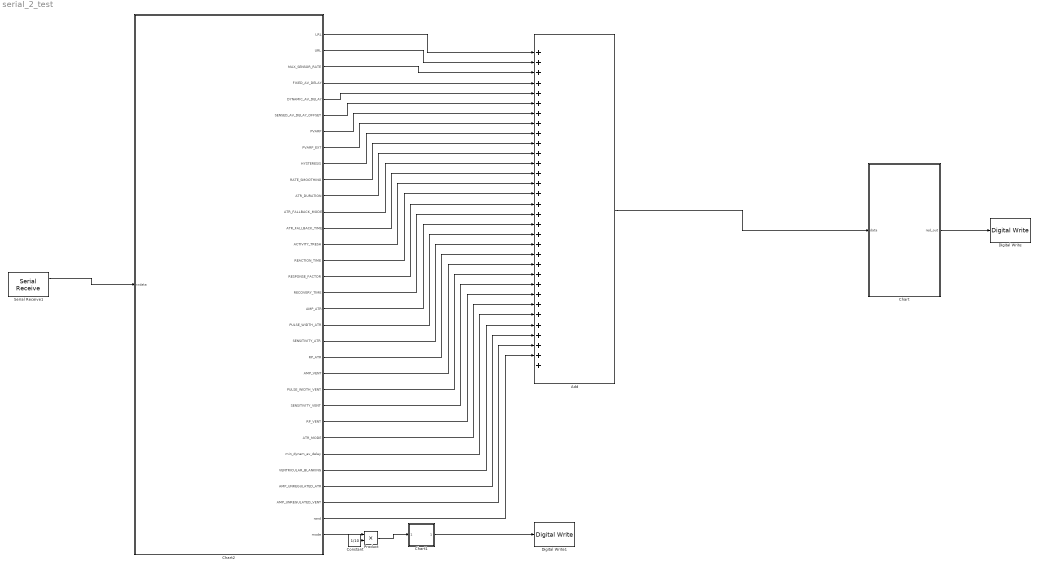
== stateflow chart serial_2_test/Chart2 ==
  state SET_PRAMS
    entry:
    rand = 0;
    mode = typecast(rxdata(1),'int8');
    LRL =  typecast(rxdata(2),'int8');
    URL = typecast(rxdata(3),'int8');
    MAX_SENSOR_RATE =  typecast(rxdata(4),'int8');
    FIXED_AV_DELAY =  typecast(rxdata(5),'int8');
    DYNAMIC_AV_DELAY =  typecast(rxdata(6),'int8');
    min_dynam_av_delay = typecast(rxdata(7),'int8');
    SENSED_AV_DELAY_OFFSET =typecast(rxdata(8),'int8');
    PVARP = typecast(rxdata(9),'int8');
    PVARP_EXT = typecast(rxdata(10),'int8');
    HYSTERESIS = typecast(rxdata(11),'int8');
    RATE_SMOOTHING = typecast(rxdata(12),'int8');
    ATR_MODE = typecast(rxdata(13),'int8');
    ATR_DURATION = typecast(rxdata(14),'int8');
    ATR_FALLBACK_MODE =typecast(rxdata(15),'int8');
    ATR_FALLBACK_TIME = typecast(rxdata(16),'int8');
    VENTRICULAR_BLANKING =typecast(rxdata(17),'int8');
    ACTIVITY_TRESH =typecast(rxdata(18),'int8');
    REACTION_TIME = typecast(rxdata(19),'int8');
    RESPONSE_FACTOR =typecast(rxdata(20),'int8');
    RECOVERY_TIME = typecast(rxdata(21),'int8');
    AMP_ATR =typecast(rxdata(22),'int8');
    AMP_UNREGULATED_ATR =typecast(rxdata(23),'int8');
    PULSE_WIDTH_ATR=typecast(rxdata(24),'int8');
    SENSITIVITY_ATR =typecast(rxdata(25),'int8');
    RP_ATR = typecast(rxdata(26),'int8');
    AMP_ATR =typecast(rxdata(27),'int8');
    AMP_UNREGULATED_ATR =typecast(rxdata(28),'int8');
    PULSE_WIDTH_ATR=typecast(rxdata(29),'int8');
    SENSITIVITY_ATR =typecast(rxdata(30),'int8');
    RP_ATR = typecast(rxdata(31),'int8');
    AMP_VENT =typecast(rxdata(32),'int8');
    AMP_UNREGULATED_VENT =typecast(rxdata(33),'int8');
    PULSE_WIDTH_VENT=typecast(rxdata(34),'int8');
    SENSITIVITY_VENT = typecast(rxdata(35),'int8');
    RP_VENT =typecast(rxdata(36),'int8');
  state Init
    entry:
  state STANDBY
  (default) -> Init
  Init -> STANDBY
  STANDBY -> SET_PRAMS : [rxdata(37) == hex2dec('21')]
  SET_PRAMS -> STANDBY
  data: rxdata input; LRL output; URL output; MAX_SENSOR_RATE output; FIXED_AV_DELAY output; DYNAMIC_AV_DELAY output; SENSED_AV_DELAY_OFFSET output; PVARP output; PVARP_EXT output; HYSTERESIS output; RATE_SMOOTHING output; ATR_DURATION output; ATR_FALLBACK_MODE output; ATR_FALLBACK_TIME output; ACTIVITY_TRESH output; REACTION_TIME output; RESPONSE_FACTOR output; RECOVERY_TIME output; AMP_ATR output; PULSE_WIDTH_ATR output; SENSITIVITY_ATR output; RP_ATR output; AMP_VENT output; PULSE_WIDTH_VENT output; SENSITIVITY_VENT output; RP_VENT output; ATR_MODE output; min_dynam_av_delay output; VENTRICULAR_BLANKING output; AMP_UNREGULATED_ATR output; AMP_UNREGULATED_VENT output; rand output; mode output

== stateflow chart serial_2_test/Chart1 ==
  state green_on
    entry:
    green_out = true;
  state init
    entry:
  (default) -> init
  init -> green_on : [green_en == 10]
  data: green_en input; green_out output

== stateflow chart serial_2_test/Chart ==
  state Init
    entry:
    red_out = false;
  state RED_ON
    entry:
    red_out= true;
  (default) -> Init
  Init -> RED_ON : [data == 31]
  data: data input; red_out output

/*
 * Academic License - for use in teaching, academic research, and meeting
 * course requirements at degree granting institutions only.  Not for
 * government, commercial, or other organizational use.
 *
 * File: serial_2_test.c
 *
 * Code generated for Simulink model 'serial_2_test'.
 *
 * Model version                  : 1.8
 * Simulink Coder version         : 9.7 (R2022a) 13-Nov-2021
 * C/C++ source code generated on : Sat Nov 26 00:19:47 2022
 *
 * Target selection: ert.tlc
 * Embedded hardware selection: ARM Compatible->ARM Cortex
 * Code generation objectives: Unspecified
 * Validation result: Not run
 */

#include "serial_2_test.h"
#include "serial_2_test_types.h"
#include "rtwtypes.h"
#include <string.h>
#include <stddef.h>

/* Named constants for Chart: '<Root>/Chart' */
#define serial_2_test_IN_Init          ((uint8_T)1U)
#define serial_2_test_IN_RED_ON        ((uint8_T)2U)

/* Named constants for Chart: '<Root>/Chart1' */
#define serial_2_test_IN_green_on      ((uint8_T)1U)
#define serial_2_test_IN_init          ((uint8_T)2U)

/* Named constants for Chart: '<Root>/Chart2' */
#define serial_2_test_IN_SET_PRAMS     ((uint8_T)2U)
#define serial_2_test_IN_STANDBY       ((uint8_T)3U)

/* Block signals (default storage) */
B_serial_2_test_T serial_2_test_B;

/* Block states (default storage) */
DW_serial_2_test_T serial_2_test_DW;

/* Real-time model */
static RT_MODEL_serial_2_test_T serial_2_test_M_;
RT_MODEL_serial_2_test_T *const serial_2_test_M = &serial_2_test_M_;

/* Forward declaration for local functions */
static void serial_2_test_SystemCore_setup(freedomk64f_SCIRead_serial_2__T *obj);
static void serial_2_test_SystemCore_setup(freedomk64f_SCIRead_serial_2__T *obj)
{
  MW_SCI_Parity_Type ParityValue;
  MW_SCI_StopBits_Type StopBitsValue;
  uint32_T SCIModuleLoc;
  uint32_T TxPinLoc;
  obj->isSetupComplete = false;
  obj->isInitialized = 1;
  TxPinLoc = MW_UNDEFINED_VALUE;
  SCIModuleLoc = 0;
  obj->MW_SCIHANDLE = MW_SCI_Open(&SCIModuleLoc, false, 10U, TxPinLoc);
  MW_SCI_SetBaudrate(obj->MW_SCIHANDLE, 115200U);
  StopBitsValue = MW_SCI_STOPBITS_1;
  ParityValue = MW_SCI_PARITY_NONE;
  MW_SCI_SetFrameFormat(obj->MW_SCIHANDLE, 8, ParityValue, StopBitsValue);
  obj->isSetupComplete = true;
}

/* Model step function */
void serial_2_test_step(void)
{
  uint8_T RxDataLocChar[37];
  boolean_T rtb_red_out;

  /* MATLABSystem: '<Root>/Serial Receive1' */
  if (serial_2_test_DW.obj.SampleTime !=
      serial_2_test_P.SerialReceive1_SampleTime) {
    serial_2_test_DW.obj.SampleTime = serial_2_test_P.SerialReceive1_SampleTime;
  }

  MW_SCI_Receive(serial_2_test_DW.obj.MW_SCIHANDLE, &RxDataLocChar[0], 37U);
  memcpy((void *)&serial_2_test_B.RxData[0], (void *)&RxDataLocChar[0],
         (uint32_T)((size_t)37 * sizeof(int8_T)));

  /* Chart: '<Root>/Chart2' incorporates:
   *  MATLABSystem: '<Root>/Serial Receive1'
   */
  if (serial_2_test_DW.is_active_c10_serial_2_test == 0U) {
    serial_2_test_DW.is_active_c10_serial_2_test = 1U;
    serial_2_test_DW.is_c10_serial_2_test = serial_2_test_IN_Init;
  } else {
    switch (serial_2_test_DW.is_c10_serial_2_test) {
     case serial_2_test_IN_Init:
      serial_2_test_DW.is_c10_serial_2_test = serial_2_test_IN_STANDBY;
      break;

     case serial_2_test_IN_SET_PRAMS:
      serial_2_test_B.rand_h = 0.0;
      serial_2_test_DW.is_c10_serial_2_test = serial_2_test_IN_STANDBY;
      break;

     default:
      /* case IN_STANDBY: */
      if (serial_2_test_B.RxData[36] == 33) {
        serial_2_test_DW.is_c10_serial_2_test = serial_2_test_IN_SET_PRAMS;
        serial_2_test_B.rand_h = 0.0;
        memcpy((void *)&serial_2_test_B.mode, (void *)&serial_2_test_B.RxData[0],
               (uint32_T)((size_t)1 * sizeof(int8_T)));
        memcpy((void *)&serial_2_test_B.LRL, (void *)&serial_2_test_B.RxData[1],
               (uint32_T)((size_t)1 * sizeof(int8_T)));
        memcpy((void *)&serial_2_test_B.URL, (void *)&serial_2_test_B.RxData[2],
               (uint32_T)((size_t)1 * sizeof(int8_T)));
        memcpy((void *)&serial_2_test_B.MAX_SENSOR_RATE, (void *)
               &serial_2_test_B.RxData[3], (uint32_T)((size_t)1 * sizeof(int8_T)));
        memcpy((void *)&serial_2_test_B.FIXED_AV_DELAY, (void *)
               &serial_2_test_B.RxData[4], (uint32_T)((size_t)1 * sizeof(int8_T)));
        memcpy((void *)&serial_2_test_B.DYNAMIC_AV_DELAY, (void *)
               &serial_2_test_B.RxData[5], (uint32_T)((size_t)1 * sizeof(int8_T)));
        memcpy((void *)&serial_2_test_B.min_dynam_av_delay, (void *)
               &serial_2_test_B.RxData[6], (uint32_T)((size_t)1 * sizeof(int8_T)));
        memcpy((void *)&serial_2_test_B.SENSED_AV_DELAY_OFFSET, (void *)
               &serial_2_test_B.RxData[7], (uint32_T)((size_t)1 * sizeof(int8_T)));
        memcpy((void *)&serial_2_test_B.PVARP, (void *)&serial_2_test_B.RxData[8],
               (uint32_T)((size_t)1 * sizeof(int8_T)));
        memcpy((void *)&serial_2_test_B.PVARP_EXT, (void *)
               &serial_2_test_B.RxData[9], (uint32_T)((size_t)1 * sizeof(int8_T)));
        memcpy((void *)&serial_2_test_B.HYSTERESIS, (void *)
               &serial_2_test_B.RxData[10], (uint32_T)((size_t)1 * sizeof(int8_T)));
        memcpy((void *)&serial_2_test_B.RATE_SMOOTHING, (void *)
               &serial_2_test_B.RxData[11], (uint32_T)((size_t)1 * sizeof(int8_T)));
        memcpy((void *)&serial_2_test_B.ATR_MODE, (void *)
               &serial_2_test_B.RxData[12], (uint32_T)((size_t)1 * sizeof(int8_T)));
        memcpy((void *)&serial_2_test_B.ATR_DURATION, (void *)
               &serial_2_test_B.RxData[13], (uint32_T)((size_t)1 * sizeof(int8_T)));
        memcpy((void *)&serial_2_test_B.ATR_FALLBACK_MODE, (void *)
               &serial_2_test_B.RxData[14], (uint32_T)((size_t)1 * sizeof(int8_T)));
        memcpy((void *)&serial_2_test_B.ATR_FALLBACK_TIME, (void *)
               &serial_2_test_B.RxData[15], (uint32_T)((size_t)1 * sizeof(int8_T)));
        memcpy((void *)&serial_2_test_B.VENTRICULAR_BLANKING, (void *)
               &serial_2_test_B.RxData[16], (uint32_T)((size_t)1 * sizeof(int8_T)));
        memcpy((void *)&serial_2_test_B.ACTIVITY_TRESH, (void *)
               &serial_2_test_B.RxData[17], (uint32_T)((size_t)1 * sizeof(int8_T)));
        memcpy((void *)&serial_2_test_B.REACTION_TIME, (void *)
               &serial_2_test_B.RxData[18], (uint32_T)((size_t)1 * sizeof(int8_T)));
        memcpy((void *)&serial_2_test_B.RESPONSE_FACTOR, (void *)
               &serial_2_test_B.RxData[19], (uint32_T)((size_t)1 * sizeof(int8_T)));
        memcpy((void *)&serial_2_test_B.RECOVERY_TIME, (void *)
               &serial_2_test_B.RxData[20], (uint32_T)((size_t)1 * sizeof(int8_T)));
        memcpy((void *)&serial_2_test_B.AMP_ATR, (void *)
               &serial_2_test_B.RxData[21], (uint32_T)((size_t)1 * sizeof(int8_T)));
        memcpy((void *)&serial_2_test_B.AMP_UNREGULATED_ATR, (void *)
               &serial_2_test_B.RxData[22], (uint32_T)((size_t)1 * sizeof(int8_T)));
        memcpy((void *)&serial_2_test_B.PULSE_WIDTH_ATR, (void *)
               &serial_2_test_B.RxData[23], (uint32_T)((size_t)1 * sizeof(int8_T)));
        memcpy((void *)&serial_2_test_B.SENSITIVITY_ATR, (void *)
               &serial_2_test_B.RxData[24], (uint32_T)((size_t)1 * sizeof(int8_T)));
        memcpy((void *)&serial_2_test_B.RP_ATR, (void *)&serial_2_test_B.RxData
               [25], (uint32_T)((size_t)1 * sizeof(int8_T)));
        memcpy((void *)&serial_2_test_B.AMP_ATR, (void *)
               &serial_2_test_B.RxData[26], (uint32_T)((size_t)1 * sizeof(int8_T)));
        memcpy((void *)&serial_2_test_B.AMP_UNREGULATED_ATR, (void *)
               &serial_2_test_B.RxData[27], (uint32_T)((size_t)1 * sizeof(int8_T)));
        memcpy((void *)&serial_2_test_B.PULSE_WIDTH_ATR, (void *)
               &serial_2_test_B.RxData[28], (uint32_T)((size_t)1 * sizeof(int8_T)));
        memcpy((void *)&serial_2_test_B.SENSITIVITY_ATR, (void *)
               &serial_2_test_B.RxData[29], (uint32_T)((size_t)1 * sizeof(int8_T)));
        memcpy((void *)&serial_2_test_B.RP_ATR, (void *)&serial_2_test_B.RxData
               [30], (uint32_T)((size_t)1 * sizeof(int8_T)));
        memcpy((void *)&serial_2_test_B.AMP_VENT, (void *)
               &serial_2_test_B.RxData[31], (uint32_T)((size_t)1 * sizeof(int8_T)));
        memcpy((void *)&serial_2_test_B.AMP_UNREGULATED_VENT, (void *)
               &serial_2_test_B.RxData[32], (uint32_T)((size_t)1 * sizeof(int8_T)));
        memcpy((void *)&serial_2_test_B.PULSE_WIDTH_VENT, (void *)
               &serial_2_test_B.RxData[33], (uint32_T)((size_t)1 * sizeof(int8_T)));
        memcpy((void *)&serial_2_test_B.SENSITIVITY_VENT, (void *)
               &serial_2_test_B.RxData[34], (uint32_T)((size_t)1 * sizeof(int8_T)));
        memcpy((void *)&serial_2_test_B.RP_VENT, (void *)
               &serial_2_test_B.RxData[35], (uint32_T)((size_t)1 * sizeof(int8_T)));
      }
      break;
    }
  }

  /* End of Chart: '<Root>/Chart2' */

  /* Chart: '<Root>/Chart' incorporates:
   *  Sum: '<Root>/Add'
   */
  if (serial_2_test_DW.is_active_c3_serial_2_test == 0U) {
    serial_2_test_DW.is_active_c3_serial_2_test = 1U;
    serial_2_test_DW.is_c3_serial_2_test = serial_2_test_IN_Init;
    rtb_red_out = false;
  } else if (serial_2_test_DW.is_c3_serial_2_test == serial_2_test_IN_Init) {
    rtb_red_out = false;
    if ((real_T)(((((((((((((((((((((((((((((serial_2_test_B.LRL +
        serial_2_test_B.URL) + serial_2_test_B.MAX_SENSOR_RATE) +
        serial_2_test_B.FIXED_AV_DELAY) + serial_2_test_B.DYNAMIC_AV_DELAY) +
        serial_2_test_B.SENSED_AV_DELAY_OFFSET) + serial_2_test_B.PVARP) +
        serial_2_test_B.PVARP_EXT) + serial_2_test_B.HYSTERESIS) +
        serial_2_test_B.RATE_SMOOTHING) + serial_2_test_B.ATR_DURATION) +
        serial_2_test_B.ATR_FALLBACK_MODE) + serial_2_test_B.ATR_FALLBACK_TIME)
        + serial_2_test_B.ACTIVITY_TRESH) + serial_2_test_B.REACTION_TIME) +
        serial_2_test_B.RESPONSE_FACTOR) + serial_2_test_B.RECOVERY_TIME) +
        serial_2_test_B.AMP_ATR) + serial_2_test_B.PULSE_WIDTH_ATR) +
                           serial_2_test_B.SENSITIVITY_ATR) +
                          serial_2_test_B.RP_ATR) + serial_2_test_B.AMP_VENT) +
                        serial_2_test_B.PULSE_WIDTH_VENT) +
                       serial_2_test_B.SENSITIVITY_VENT) +
                      serial_2_test_B.RP_VENT) + serial_2_test_B.ATR_MODE) +
                    serial_2_test_B.min_dynam_av_delay) +
                   serial_2_test_B.VENTRICULAR_BLANKING) +
                  serial_2_test_B.AMP_UNREGULATED_ATR) +
                 serial_2_test_B.AMP_UNREGULATED_VENT) + serial_2_test_B.rand_h ==
        31.0) {
      serial_2_test_DW.is_c3_serial_2_test = serial_2_test_IN_RED_ON;
      rtb_red_out = true;
    }
  } else {
    /* case IN_RED_ON: */
    rtb_red_out = true;
  }

  /* End of Chart: '<Root>/Chart' */

  /* MATLABSystem: '<Root>/Digital Write' */
  MW_digitalIO_write(serial_2_test_DW.obj_b.MW_DIGITALIO_HANDLE, rtb_red_out);

  /* Chart: '<Root>/Chart1' incorporates:
   *  Constant: '<Root>/Constant'
   *  Product: '<Root>/Product'
   */
  if (serial_2_test_DW.is_active_c1_serial_2_test == 0U) {
    serial_2_test_DW.is_active_c1_serial_2_test = 1U;
    serial_2_test_DW.is_c1_serial_2_test = serial_2_test_IN_init;
  } else if (serial_2_test_DW.is_c1_serial_2_test == serial_2_test_IN_green_on)
  {
    serial_2_test_B.green_out = true;

    /* case IN_init: */
  } else if ((real_T)serial_2_test_B.mode * serial_2_test_P.Constant_Value ==
             10.0) {
    serial_2_test_DW.is_c1_serial_2_test = serial_2_test_IN_green_on;
    serial_2_test_B.green_out = true;
  }

  /* End of Chart: '<Root>/Chart1' */

  /* MATLABSystem: '<Root>/Digital Write1' */
  MW_digitalIO_write(serial_2_test_DW.obj_o.MW_DIGITALIO_HANDLE,
                     serial_2_test_B.green_out);
}
